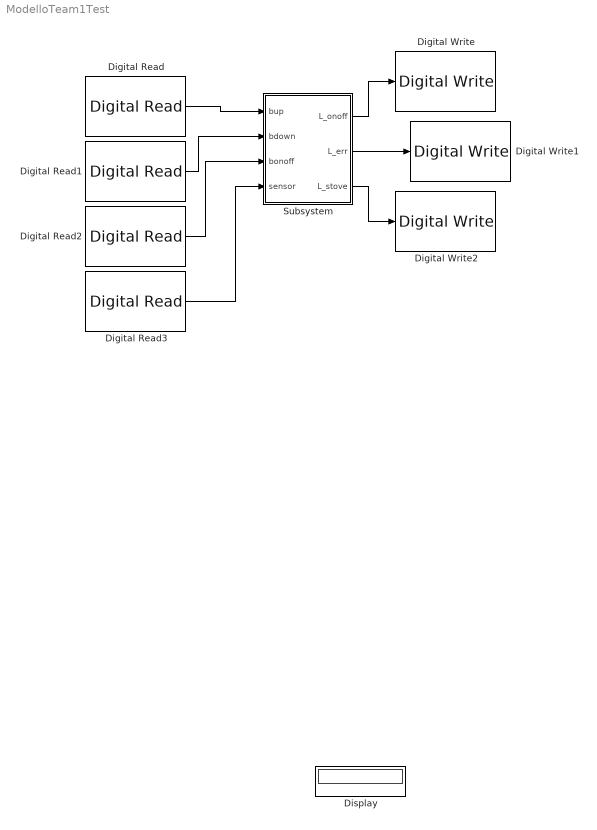
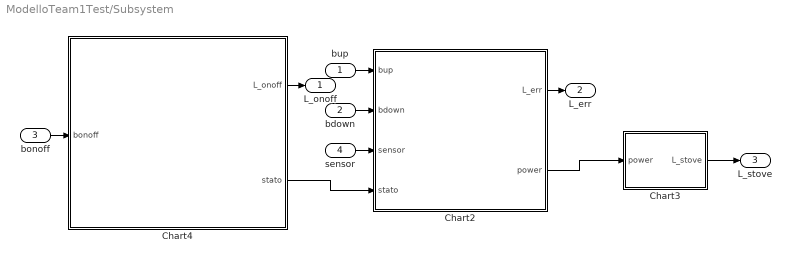
== stateflow chart ModelloTeam1Test/Subsystem/Chart3 ==
  state Stove_management
    state Blinking_stove
      state Led_on
        en: L_stove=ON;
      state Led_off
        en: L_stove = OFF;
      (default) -> Led_on
      Led_off -> Led_on : after(power,sec)
      Led_on -> Led_off : after(power,sec)
    state Starting_power
      en: L_stove=OFF;
    (default) -> Starting_power
    Blinking_stove -> Starting_power : [power==MAX_TIMING]
    Starting_power -> Blinking_stove : [power<MAX_TIMING]
  data: ON local =true; OFF local =false; L_stove output; power input; MAX_TIMING local =4

== stateflow chart ModelloTeam1Test/Subsystem/Chart2 ==
  state Power_and_error_management
    state Power_management [parallel]
      state PowerUD_manager_on
        state PowerUp
          en: temp_power=temp_power/2
        state Check_buttons
          en: power=temp_power;
        state PowerDown
          en: temp_power=temp_power*2
        PowerUp -> Check_buttons [order 4] : [power==MAX_TIMING & sensor~=ACTIVE]{temp_power=MAX_TIMING}
        PowerUp -> Check_buttons [order 2] : after(TIMER,sec)
        Check_buttons -> PowerUp [order 1] : [power~=MIN_TIMING  & bup_second==PRESSED]
        PowerUp -> PowerUp [order 3] : [temp_power~=MIN_TIMING  & bup_second==PRESSED]
        PowerUp -> PowerDown [order 1] : [bdown_second==PRESSED]
        PowerDown -> PowerUp [order 1] : [ bup_second==PRESSED]
        (default) -> Check_buttons
        Check_buttons -> PowerDown [order 2] : [power~=MAX_TIMING & bdown_second==PRESSED]
        PowerDown -> Check_buttons [order 4] : [power==MAX_TIMING & sensor~=ACTIVE]{temp_power=MAX_TIMING}
        PowerDown -> Check_buttons [order 2] : after(TIMER,sec)
        PowerDown -> PowerDown [order 3] : [temp_power~=MAX_TIMING & bdown_second==PRESSED]
      state PowerUD_manager_off
        en: temp_power=MAX_TIMING
        power=MAX_TIMING;
      (default) -> PowerUD_manager_off
      PowerUD_manager_off -> PowerUD_manager_on : [stato==ON]
      PowerUD_manager_on -> PowerUD_manager_off : [stato==OFF]
    state Button_up_down_management [parallel]
      state Button_up_down_manager_on
        state Longpressed_DOWN_button
          en: bdown_second = RELEASED;
        state Longpressed_UP_botton
          en: bup_second = RELEASED;
        state Pressed_DOWN_button
          en: bdown_second = RELEASED;
          on after(BUTTONDURATION,sec):
          bdown_second=PRESSED;
        state Pressed_UP_botton
          en: bup_second = RELEASED;
          on after(BUTTONDURATION,sec):
          bup_second=PRESSED;
        state Wait_Up_Down_button
          en: bup_second=RELEASED;
          bdown_second=RELEASED;
        Longpressed_UP_botton -> Wait_Up_Down_button : [bup==RELEASED]
        Pressed_UP_botton -> Longpressed_UP_botton [order 2] : [bup_second==PRESSED & bup == PRESSED]
        Pressed_DOWN_button -> Longpressed_DOWN_button [order 1] : [bdown_second==PRESSED & bdown == PRESSED]
        Longpressed_DOWN_button -> Wait_Up_Down_button : [bdown==RELEASED]
        Pressed_UP_botton -> Wait_Up_Down_button [order 1] : [bup==RELEASED | sensor ~=ACTIVE]
        Pressed_DOWN_button -> Wait_Up_Down_button [order 2] : [bdown==RELEASED | sensor~=ACTIVE]
        Wait_Up_Down_button -> Pressed_UP_botton [order 2] : [bup==PRESSED & sensor==ACTIVE]
        (default) -> Wait_Up_Down_button
        Wait_Up_Down_button -> Pressed_DOWN_button [order 1] : [bdown==PRESSED & sensor==ACTIVE]
      state Button_up_down_manager_off
      Button_up_down_manager_off -> Button_up_down_manager_on : [stato==ON]
      Button_up_down_manager_on -> Button_up_down_manager_off : [stato==OFF]
      (default) -> Button_up_down_manager_off
    state Error_management [parallel]
      state Error_manager_on
        state Wait_blinking
          en: power=MAX_TIMING;
          temp_power=MAX_TIMING;
        state Check_error
        state Start_error
          en: L_err=ON;
          ex: L_err =OFF;
        (default) -> Wait_blinking
        Check_error -> Wait_blinking [order 2] : [power==MAX_TIMING]
        Wait_blinking -> Check_error : [power<MAX_TIMING]
        Start_error -> Check_error [order 1] : [sensor==ACTIVE]
        Check_error -> Start_error [order 1] : [sensor~=ACTIVE]
        Start_error -> Wait_blinking [order 2] : after(ERR_TIMER,sec)
      state Error_manager_off
        en: L_err=OFF;
      Error_manager_off -> Error_manager_on : [stato==ON]
      (default) -> Error_manager_off
      Error_manager_on -> Error_manager_off : [stato==OFF]
  (default) -> Power_and_error_management
  data: bup input; bdown input; sensor input; L_err output; RELEASED local =true; PRESSED local =false; BUTTONDURATION local =1; bup_second local; bdown_second local; ACTIVE local =0; ERR_TIMER local =10; ON local =true; OFF local =false; TIMER local =5; temp_power local; power output; stato input boolean; MAX_TIMING local =4; MIN_TIMING local =0.25

== stateflow chart ModelloTeam1Test/Subsystem/Chart4 ==
  state PowerOFF_management
    state PowerOFF_manager_on
      state Pressed_OFF_button
        en: bonoff_second = RELEASED;
        on after(BUTTONDURATION,sec):
        bonoff_second=PRESSED;
      state Wait_OFF_button
        en: bonoff_second=RELEASED;
      Wait_OFF_button -> Pressed_OFF_button : [bonoff == PRESSED]
      Pressed_OFF_button -> Wait_OFF_button : [bonoff==RELEASED]
      (default) -> Wait_OFF_button
    state W_post_power_off
      en: L_onoff=OFF;
      stato=OFF;
    state PowerOFF_manager_off
      en: stato=OFF;
      L_onoff=OFF;
    state W_post_power_on
      en: stato=ON;
      L_onoff=ON;
    PowerOFF_manager_on -> W_post_power_off : [bonoff_second==PRESSED]
    W_post_power_off -> PowerOFF_manager_off : [bonoff==RELEASED]
    W_post_power_on -> PowerOFF_manager_on : [bonoff==RELEASED]
    (default) -> PowerOFF_manager_off
    PowerOFF_manager_off -> W_post_power_on : [bonoff==PRESSED]
  data: L_onoff output; bonoff input; RELEASED local =true; PRESSED local =false; bonoff_second local; ON local =true; OFF local =false; BUTTONDURATION local =1; stato output

/*
 * ModelloTeam1Test.c
 *
 * Academic License - for use in teaching, academic research, and meeting
 * course requirements at degree granting institutions only.  Not for
 * government, commercial, or other organizational use.
 *
 * Code generation for model "ModelloTeam1Test".
 *
 * Model version              : 1.87
 * Simulink Coder version : 9.8 (R2022b) 13-May-2022
 * C source code generated on : Thu Jun 15 16:43:28 2023
 *
 * Target selection: ert.tlc
 * Note: GRT includes extra infrastructure and instrumentation for prototyping
 * Embedded hardware selection: ARM Compatible->ARM Cortex
 * Code generation objectives: Unspecified
 * Validation result: Not run
 */

#include "ModelloTeam1Test.h"
#include "rtwtypes.h"
#include "ModelloTeam1Test_types.h"
#include <math.h>
#include <string.h>

/* Named constants for Chart: '<S1>/Chart2' */
#define M_IN_Button_up_down_manager_off ((uint8_T)1U)
#define Mo_IN_Button_up_down_manager_on ((uint8_T)2U)
#define Mode_IN_Longpressed_DOWN_button ((uint8_T)1U)
#define Modell_IN_Longpressed_UP_botton ((uint8_T)2U)
#define ModelloT_IN_PowerUD_manager_off ((uint8_T)1U)
#define ModelloT_IN_Pressed_DOWN_button ((uint8_T)3U)
#define ModelloT_IN_Wait_Up_Down_button ((uint8_T)5U)
#define ModelloTe_IN_PowerUD_manager_on ((uint8_T)2U)
#define ModelloTea_IN_Error_manager_off ((uint8_T)1U)
#define ModelloTea_IN_Pressed_UP_botton ((uint8_T)4U)
#define ModelloTeam1Te_IN_Check_buttons ((uint8_T)1U)
#define ModelloTeam1Te_IN_Wait_blinking ((uint8_T)3U)
#define ModelloTeam1Test_IN_Check_error ((uint8_T)1U)
#define ModelloTeam1Test_IN_PowerDown  ((uint8_T)2U)
#define ModelloTeam1Test_IN_PowerUp    ((uint8_T)3U)
#define ModelloTeam1Test_IN_Start_error ((uint8_T)2U)
#define ModelloTeam1_IN_NO_ACTIVE_CHILD ((uint8_T)0U)
#define ModelloTeam_IN_Error_manager_on ((uint8_T)2U)

/* Named constants for Chart: '<S1>/Chart3' */
#define ModelloTeam1T_IN_Blinking_stove ((uint8_T)1U)
#define ModelloTeam1T_IN_Starting_power ((uint8_T)2U)
#define ModelloTeam1Test_IN_Led_off    ((uint8_T)1U)
#define ModelloTeam1Test_IN_Led_on     ((uint8_T)2U)

/* Named constants for Chart: '<S1>/Chart4' */
#define ModelloT_IN_PowerOFF_manager_on ((uint8_T)2U)
#define ModelloTe_IN_Pressed_OFF_button ((uint8_T)1U)
#define ModelloTeam1_IN_W_post_power_on ((uint8_T)4U)
#define ModelloTeam1_IN_Wait_OFF_button ((uint8_T)2U)
#define ModelloTeam_IN_W_post_power_off ((uint8_T)3U)
#define Modello_IN_PowerOFF_manager_off ((uint8_T)1U)

/* Block signals (default storage) */
B_ModelloTeam1Test_T ModelloTeam1Test_B;

/* Block states (default storage) */
DW_ModelloTeam1Test_T ModelloTeam1Test_DW;

/* Real-time model */
static RT_MODEL_ModelloTeam1Test_T ModelloTeam1Test_M_;
RT_MODEL_ModelloTeam1Test_T *const ModelloTeam1Test_M = &ModelloTeam1Test_M_;

/* Model step function */
void ModelloTeam1Test_step(void)
{
  boolean_T guard1 = false;
  boolean_T guard2 = false;
  boolean_T rtb_DigitalRead1_0;
  boolean_T rtb_DigitalRead2_0;
  boolean_T rtb_DigitalRead3_0;

  /* MATLABSystem: '<Root>/Digital Read2' */
  if (ModelloTeam1Test_DW.obj_g.SampleTime !=
      ModelloTeam1Test_P.DigitalRead2_SampleTime) {
    ModelloTeam1Test_DW.obj_g.SampleTime =
      ModelloTeam1Test_P.DigitalRead2_SampleTime;
  }

  rtb_DigitalRead2_0 = MW_digitalIO_read
    (ModelloTeam1Test_DW.obj_g.MW_DIGITALIO_HANDLE);

  /* Chart: '<S1>/Chart4' incorporates:
   *  MATLABSystem: '<Root>/Digital Read2'
   */
  if (ModelloTeam1Test_DW.temporalCounter_i1 < MAX_uint32_T) {
    ModelloTeam1Test_DW.temporalCounter_i1++;
  }

  if (ModelloTeam1Test_DW.is_active_c4_ModelloTeam1Test == 0U) {
    ModelloTeam1Test_DW.is_active_c4_ModelloTeam1Test = 1U;
    ModelloTeam1Test_DW.is_PowerOFF_management = Modello_IN_PowerOFF_manager_off;
    ModelloTeam1Test_B.stato = ModelloTeam1Test_DW.OFF;
    ModelloTeam1Test_B.L_onoff = ModelloTeam1Test_DW.OFF;
  } else {
    switch (ModelloTeam1Test_DW.is_PowerOFF_management) {
     case Modello_IN_PowerOFF_manager_off:
      if (rtb_DigitalRead2_0 == ModelloTeam1Test_DW.PRESSED) {
        ModelloTeam1Test_DW.is_PowerOFF_management =
          ModelloTeam1_IN_W_post_power_on;
        ModelloTeam1Test_B.stato = ModelloTeam1Test_DW.ON;
        ModelloTeam1Test_B.L_onoff = ModelloTeam1Test_DW.ON;
      }
      break;

     case ModelloT_IN_PowerOFF_manager_on:
      if (ModelloTeam1Test_DW.bonoff_second == ModelloTeam1Test_DW.PRESSED) {
        ModelloTeam1Test_DW.is_PowerOFF_manager_on =
          ModelloTeam1_IN_NO_ACTIVE_CHILD;
        ModelloTeam1Test_DW.is_PowerOFF_management =
          ModelloTeam_IN_W_post_power_off;
        ModelloTeam1Test_B.L_onoff = ModelloTeam1Test_DW.OFF;
        ModelloTeam1Test_B.stato = ModelloTeam1Test_DW.OFF;
      } else if (ModelloTeam1Test_DW.is_PowerOFF_manager_on ==
                 ModelloTe_IN_Pressed_OFF_button) {
        if (rtb_DigitalRead2_0 == ModelloTeam1Test_DW.RELEASED) {
          ModelloTeam1Test_DW.is_PowerOFF_manager_on =
            ModelloTeam1_IN_Wait_OFF_button;
          ModelloTeam1Test_DW.bonoff_second = ModelloTeam1Test_DW.RELEASED;
        } else if (ModelloTeam1Test_DW.temporalCounter_i1 >= (uint32_T)ceil
                   (ModelloTeam1Test_DW.BUTTONDURATION * 4.0)) {
          ModelloTeam1Test_DW.bonoff_second = ModelloTeam1Test_DW.PRESSED;
        }

        /* case IN_Wait_OFF_button: */
      } else if (rtb_DigitalRead2_0 == ModelloTeam1Test_DW.PRESSED) {
        ModelloTeam1Test_DW.is_PowerOFF_manager_on =
          ModelloTe_IN_Pressed_OFF_button;
        ModelloTeam1Test_DW.temporalCounter_i1 = 0U;
        ModelloTeam1Test_DW.bonoff_second = ModelloTeam1Test_DW.RELEASED;
      }
      break;

     case ModelloTeam_IN_W_post_power_off:
      if (rtb_DigitalRead2_0 == ModelloTeam1Test_DW.RELEASED) {
        ModelloTeam1Test_DW.is_PowerOFF_management =
          Modello_IN_PowerOFF_manager_off;
        ModelloTeam1Test_B.stato = ModelloTeam1Test_DW.OFF;
        ModelloTeam1Test_B.L_onoff = ModelloTeam1Test_DW.OFF;
      }
      break;

     default:
      /* case IN_W_post_power_on: */
      if (rtb_DigitalRead2_0 == ModelloTeam1Test_DW.RELEASED) {
        ModelloTeam1Test_DW.is_PowerOFF_management =
          ModelloT_IN_PowerOFF_manager_on;
        ModelloTeam1Test_DW.is_PowerOFF_manager_on =
          ModelloTeam1_IN_Wait_OFF_button;
        ModelloTeam1Test_DW.bonoff_second = ModelloTeam1Test_DW.RELEASED;
      }
      break;
    }
  }

  /* End of Chart: '<S1>/Chart4' */

  /* MATLABSystem: '<Root>/Digital Write' */
  MW_digitalIO_write(ModelloTeam1Test_DW.obj_gt.MW_DIGITALIO_HANDLE,
                     ModelloTeam1Test_B.L_onoff);

  /* MATLABSystem: '<Root>/Digital Read' */
  if (ModelloTeam1Test_DW.obj_a.SampleTime !=
      ModelloTeam1Test_P.DigitalRead_SampleTime) {
    ModelloTeam1Test_DW.obj_a.SampleTime =
      ModelloTeam1Test_P.DigitalRead_SampleTime;
  }

  rtb_DigitalRead2_0 = MW_digitalIO_read
    (ModelloTeam1Test_DW.obj_a.MW_DIGITALIO_HANDLE);

  /* MATLABSystem: '<Root>/Digital Read1' */
  if (ModelloTeam1Test_DW.obj_d.SampleTime !=
      ModelloTeam1Test_P.DigitalRead1_SampleTime) {
    ModelloTeam1Test_DW.obj_d.SampleTime =
      ModelloTeam1Test_P.DigitalRead1_SampleTime;
  }

  rtb_DigitalRead1_0 = MW_digitalIO_read
    (ModelloTeam1Test_DW.obj_d.MW_DIGITALIO_HANDLE);

  /* MATLABSystem: '<Root>/Digital Read3' */
  if (ModelloTeam1Test_DW.obj.SampleTime !=
      ModelloTeam1Test_P.DigitalRead3_SampleTime) {
    ModelloTeam1Test_DW.obj.SampleTime =
      ModelloTeam1Test_P.DigitalRead3_SampleTime;
  }

  rtb_DigitalRead3_0 = MW_digitalIO_read
    (ModelloTeam1Test_DW.obj.MW_DIGITALIO_HANDLE);

  /* Chart: '<S1>/Chart2' incorporates:
   *  MATLABSystem: '<Root>/Digital Read'
   *  MATLABSystem: '<Root>/Digital Read1'
   *  MATLABSystem: '<Root>/Digital Read3'
   */
  if (ModelloTeam1Test_DW.temporalCounter_i1_j < MAX_uint32_T) {
    ModelloTeam1Test_DW.temporalCounter_i1_j++;
  }

  if (ModelloTeam1Test_DW.temporalCounter_i2 < MAX_uint32_T) {
    ModelloTeam1Test_DW.temporalCounter_i2++;
  }

  if (ModelloTeam1Test_DW.temporalCounter_i3 < MAX_uint32_T) {
    ModelloTeam1Test_DW.temporalCounter_i3++;
  }

  if (ModelloTeam1Test_DW.is_active_c2_ModelloTeam1Test == 0U) {
    ModelloTeam1Test_DW.is_active_c2_ModelloTeam1Test = 1U;
    ModelloTeam1Test_DW.is_Power_management = ModelloT_IN_PowerUD_manager_off;
    ModelloTeam1Test_DW.temp_power = ModelloTeam1Test_DW.MAX_TIMING_d;
    ModelloTeam1Test_B.power = ModelloTeam1Test_DW.MAX_TIMING_d;
    ModelloTeam1Test_DW.is_Button_up_down_management =
      M_IN_Button_up_down_manager_off;
    ModelloTeam1Test_DW.is_Error_management = ModelloTea_IN_Error_manager_off;
    ModelloTeam1Test_B.L_err = ModelloTeam1Test_DW.OFF_p;
  } else {
    if (ModelloTeam1Test_DW.is_Power_management ==
        ModelloT_IN_PowerUD_manager_off) {
      if (ModelloTeam1Test_B.stato == ModelloTeam1Test_DW.ON_d) {
        ModelloTeam1Test_DW.is_Power_management =
          ModelloTe_IN_PowerUD_manager_on;
        ModelloTeam1Test_DW.is_PowerUD_manager_on =
          ModelloTeam1Te_IN_Check_buttons;
        ModelloTeam1Test_B.power = ModelloTeam1Test_DW.temp_power;
      }

      /* case IN_PowerUD_manager_on: */
    } else if (ModelloTeam1Test_B.stato == ModelloTeam1Test_DW.OFF_p) {
      ModelloTeam1Test_DW.is_PowerUD_manager_on =
        ModelloTeam1_IN_NO_ACTIVE_CHILD;
      ModelloTeam1Test_DW.is_Power_management = ModelloT_IN_PowerUD_manager_off;
      ModelloTeam1Test_DW.temp_power = ModelloTeam1Test_DW.MAX_TIMING_d;
      ModelloTeam1Test_B.power = ModelloTeam1Test_DW.MAX_TIMING_d;
    } else {
      guard1 = false;
      guard2 = false;
      switch (ModelloTeam1Test_DW.is_PowerUD_manager_on) {
       case ModelloTeam1Te_IN_Check_buttons:
        if ((ModelloTeam1Test_B.power != ModelloTeam1Test_DW.MIN_TIMING) &&
            (ModelloTeam1Test_DW.bup_second == ModelloTeam1Test_DW.PRESSED_c)) {
          ModelloTeam1Test_DW.is_PowerUD_manager_on =
            ModelloTeam1Test_IN_PowerUp;
          ModelloTeam1Test_DW.temporalCounter_i2 = 0U;
          ModelloTeam1Test_DW.temp_power /= 2.0;
        } else if ((ModelloTeam1Test_B.power != ModelloTeam1Test_DW.MAX_TIMING_d)
                   && (ModelloTeam1Test_DW.bdown_second ==
                       ModelloTeam1Test_DW.PRESSED_c)) {
          ModelloTeam1Test_DW.is_PowerUD_manager_on =
            ModelloTeam1Test_IN_PowerDown;
          ModelloTeam1Test_DW.temporalCounter_i2 = 0U;
          ModelloTeam1Test_DW.temp_power *= 2.0;
        }
        break;

       case ModelloTeam1Test_IN_PowerDown:
        if (ModelloTeam1Test_DW.bup_second == ModelloTeam1Test_DW.PRESSED_c) {
          ModelloTeam1Test_DW.is_PowerUD_manager_on =
            ModelloTeam1Test_IN_PowerUp;
          ModelloTeam1Test_DW.temporalCounter_i2 = 0U;
          ModelloTeam1Test_DW.temp_power /= 2.0;
        } else if (ModelloTeam1Test_DW.temporalCounter_i2 >= (uint32_T)ceil
                   (ModelloTeam1Test_DW.TIMER * 4.0)) {
          guard2 = true;
        } else if ((ModelloTeam1Test_DW.temp_power !=
                    ModelloTeam1Test_DW.MAX_TIMING_d) &&
                   (ModelloTeam1Test_DW.bdown_second ==
                    ModelloTeam1Test_DW.PRESSED_c)) {
          ModelloTeam1Test_DW.is_PowerUD_manager_on =
            ModelloTeam1Test_IN_PowerDown;
          ModelloTeam1Test_DW.temporalCounter_i2 = 0U;
          ModelloTeam1Test_DW.temp_power *= 2.0;
        } else if ((ModelloTeam1Test_B.power == ModelloTeam1Test_DW.MAX_TIMING_d)
                   && (rtb_DigitalRead3_0 != ModelloTeam1Test_DW.ACTIVE)) {
          ModelloTeam1Test_DW.temp_power = ModelloTeam1Test_DW.MAX_TIMING_d;
          guard2 = true;
        }
        break;

       default:
        /* case IN_PowerUp: */
        if (ModelloTeam1Test_DW.bdown_second == ModelloTeam1Test_DW.PRESSED_c) {
          ModelloTeam1Test_DW.is_PowerUD_manager_on =
            ModelloTeam1Test_IN_PowerDown;
          ModelloTeam1Test_DW.temporalCounter_i2 = 0U;
          ModelloTeam1Test_DW.temp_power *= 2.0;
        } else if (ModelloTeam1Test_DW.temporalCounter_i2 >= (uint32_T)ceil
                   (ModelloTeam1Test_DW.TIMER * 4.0)) {
          guard1 = true;
        } else if ((ModelloTeam1Test_DW.temp_power !=
                    ModelloTeam1Test_DW.MIN_TIMING) &&
                   (ModelloTeam1Test_DW.bup_second ==
                    ModelloTeam1Test_DW.PRESSED_c)) {
          ModelloTeam1Test_DW.is_PowerUD_manager_on =
            ModelloTeam1Test_IN_PowerUp;
          ModelloTeam1Test_DW.temporalCounter_i2 = 0U;
          ModelloTeam1Test_DW.temp_power /= 2.0;
        } else if ((ModelloTeam1Test_B.power == ModelloTeam1Test_DW.MAX_TIMING_d)
                   && (rtb_DigitalRead3_0 != ModelloTeam1Test_DW.ACTIVE)) {
          ModelloTeam1Test_DW.temp_power = ModelloTeam1Test_DW.MAX_TIMING_d;
          guard1 = true;
        }
        break;
      }

      if (guard2) {
        ModelloTeam1Test_DW.is_PowerUD_manager_on =
          ModelloTeam1Te_IN_Check_buttons;
        ModelloTeam1Test_B.power = ModelloTeam1Test_DW.temp_power;
      }

      if (guard1) {
        ModelloTeam1Test_DW.is_PowerUD_manager_on =
          ModelloTeam1Te_IN_Check_buttons;
        ModelloTeam1Test_B.power = ModelloTeam1Test_DW.temp_power;
      }
    }

    if (ModelloTeam1Test_DW.is_Button_up_down_management ==
        M_IN_Button_up_down_manager_off) {
      if (ModelloTeam1Test_B.stato == ModelloTeam1Test_DW.ON_d) {
        ModelloTeam1Test_DW.is_Button_up_down_management =
          Mo_IN_Button_up_down_manager_on;
        ModelloTeam1Test_DW.is_Button_up_down_manager_on =
          ModelloT_IN_Wait_Up_Down_button;
        ModelloTeam1Test_DW.bup_second = ModelloTeam1Test_DW.RELEASED_i;
        ModelloTeam1Test_DW.bdown_second = ModelloTeam1Test_DW.RELEASED_i;
      }

      /* case IN_Button_up_down_manager_on: */
    } else if (ModelloTeam1Test_B.stato == ModelloTeam1Test_DW.OFF_p) {
      ModelloTeam1Test_DW.is_Button_up_down_manager_on =
        ModelloTeam1_IN_NO_ACTIVE_CHILD;
      ModelloTeam1Test_DW.is_Button_up_down_management =
        M_IN_Button_up_down_manager_off;
    } else {
      switch (ModelloTeam1Test_DW.is_Button_up_down_manager_on) {
       case Mode_IN_Longpressed_DOWN_button:
        if (rtb_DigitalRead1_0 == ModelloTeam1Test_DW.RELEASED_i) {
          ModelloTeam1Test_DW.is_Button_up_down_manager_on =
            ModelloT_IN_Wait_Up_Down_button;
          ModelloTeam1Test_DW.bup_second = ModelloTeam1Test_DW.RELEASED_i;
          ModelloTeam1Test_DW.bdown_second = ModelloTeam1Test_DW.RELEASED_i;
        }
        break;

       case Modell_IN_Longpressed_UP_botton:
        if (rtb_DigitalRead2_0 == ModelloTeam1Test_DW.RELEASED_i) {
          ModelloTeam1Test_DW.is_Button_up_down_manager_on =
            ModelloT_IN_Wait_Up_Down_button;
          ModelloTeam1Test_DW.bup_second = ModelloTeam1Test_DW.RELEASED_i;
          ModelloTeam1Test_DW.bdown_second = ModelloTeam1Test_DW.RELEASED_i;
        }
        break;

       case ModelloT_IN_Pressed_DOWN_button:
        if ((ModelloTeam1Test_DW.bdown_second == ModelloTeam1Test_DW.PRESSED_c) &&
            (rtb_DigitalRead1_0 == ModelloTeam1Test_DW.PRESSED_c)) {
          ModelloTeam1Test_DW.is_Button_up_down_manager_on =
            Mode_IN_Longpressed_DOWN_button;
          ModelloTeam1Test_DW.bdown_second = ModelloTeam1Test_DW.RELEASED_i;
        } else if ((rtb_DigitalRead1_0 == ModelloTeam1Test_DW.RELEASED_i) ||
                   (rtb_DigitalRead3_0 != ModelloTeam1Test_DW.ACTIVE)) {
          ModelloTeam1Test_DW.is_Button_up_down_manager_on =
            ModelloT_IN_Wait_Up_Down_button;
          ModelloTeam1Test_DW.bup_second = ModelloTeam1Test_DW.RELEASED_i;
          ModelloTeam1Test_DW.bdown_second = ModelloTeam1Test_DW.RELEASED_i;
        } else if (ModelloTeam1Test_DW.temporalCounter_i1_j >= (uint32_T)ceil
                   (ModelloTeam1Test_DW.BUTTONDURATION_l * 4.0)) {
          ModelloTeam1Test_DW.bdown_second = ModelloTeam1Test_DW.PRESSED_c;
        }
        break;

       case ModelloTea_IN_Pressed_UP_botton:
        if ((rtb_DigitalRead2_0 == ModelloTeam1Test_DW.RELEASED_i) ||
            (rtb_DigitalRead3_0 != ModelloTeam1Test_DW.ACTIVE)) {
          ModelloTeam1Test_DW.is_Button_up_down_manager_on =
            ModelloT_IN_Wait_Up_Down_button;
          ModelloTeam1Test_DW.bup_second = ModelloTeam1Test_DW.RELEASED_i;
          ModelloTeam1Test_DW.bdown_second = ModelloTeam1Test_DW.RELEASED_i;
        } else if ((ModelloTeam1Test_DW.bup_second ==
                    ModelloTeam1Test_DW.PRESSED_c) && (rtb_DigitalRead2_0 ==
                    ModelloTeam1Test_DW.PRESSED_c)) {
          ModelloTeam1Test_DW.is_Button_up_down_manager_on =
            Modell_IN_Longpressed_UP_botton;
          ModelloTeam1Test_DW.bup_second = ModelloTeam1Test_DW.RELEASED_i;
        } else if (ModelloTeam1Test_DW.temporalCounter_i1_j >= (uint32_T)ceil
                   (ModelloTeam1Test_DW.BUTTONDURATION_l * 4.0)) {
          ModelloTeam1Test_DW.bup_second = ModelloTeam1Test_DW.PRESSED_c;
        }
        break;

       default:
        /* case IN_Wait_Up_Down_button: */
        if ((rtb_DigitalRead1_0 == ModelloTeam1Test_DW.PRESSED_c) &&
            (rtb_DigitalRead3_0 == ModelloTeam1Test_DW.ACTIVE)) {
          ModelloTeam1Test_DW.is_Button_up_down_manager_on =
            ModelloT_IN_Pressed_DOWN_button;
          ModelloTeam1Test_DW.temporalCounter_i1_j = 0U;
          ModelloTeam1Test_DW.bdown_second = ModelloTeam1Test_DW.RELEASED_i;
        } else if ((rtb_DigitalRead2_0 == ModelloTeam1Test_DW.PRESSED_c) &&
                   (rtb_DigitalRead3_0 == ModelloTeam1Test_DW.ACTIVE)) {
          ModelloTeam1Test_DW.is_Button_up_down_manager_on =
            ModelloTea_IN_Pressed_UP_botton;
          ModelloTeam1Test_DW.temporalCounter_i1_j = 0U;
          ModelloTeam1Test_DW.bup_second = ModelloTeam1Test_DW.RELEASED_i;
        }
        break;
      }
    }

    if (ModelloTeam1Test_DW.is_Error_management ==
        ModelloTea_IN_Error_manager_off) {
      if (ModelloTeam1Test_B.stato == ModelloTeam1Test_DW.ON_d) {
        ModelloTeam1Test_DW.is_Error_management =
          ModelloTeam_IN_Error_manager_on;
        ModelloTeam1Test_DW.is_Error_manager_on =
          ModelloTeam1Te_IN_Wait_blinking;
        ModelloTeam1Test_B.power = ModelloTeam1Test_DW.MAX_TIMING_d;
        ModelloTeam1Test_DW.temp_power = ModelloTeam1Test_DW.MAX_TIMING_d;
      }

      /* case IN_Error_manager_on: */
    } else if (ModelloTeam1Test_B.stato == ModelloTeam1Test_DW.OFF_p) {
      ModelloTeam1Test_DW.is_Error_manager_on = ModelloTeam1_IN_NO_ACTIVE_CHILD;
      ModelloTeam1Test_DW.is_Error_management = ModelloTea_IN_Error_manager_off;
      ModelloTeam1Test_B.L_err = ModelloTeam1Test_DW.OFF_p;
    } else {
      switch (ModelloTeam1Test_DW.is_Error_manager_on) {
       case ModelloTeam1Test_IN_Check_error:
        if (rtb_DigitalRead3_0 != ModelloTeam1Test_DW.ACTIVE) {
          ModelloTeam1Test_DW.is_Error_manager_on =
            ModelloTeam1Test_IN_Start_error;
          ModelloTeam1Test_DW.temporalCounter_i3 = 0U;
          ModelloTeam1Test_B.L_err = ModelloTeam1Test_DW.ON_d;
        } else if (ModelloTeam1Test_B.power == ModelloTeam1Test_DW.MAX_TIMING_d)
        {
          ModelloTeam1Test_DW.is_Error_manager_on =
            ModelloTeam1Te_IN_Wait_blinking;
          ModelloTeam1Test_B.power = ModelloTeam1Test_DW.MAX_TIMING_d;
          ModelloTeam1Test_DW.temp_power = ModelloTeam1Test_DW.MAX_TIMING_d;
        }
        break;

       case ModelloTeam1Test_IN_Start_error:
        if (rtb_DigitalRead3_0 == ModelloTeam1Test_DW.ACTIVE) {
          ModelloTeam1Test_B.L_err = ModelloTeam1Test_DW.OFF_p;
          ModelloTeam1Test_DW.is_Error_manager_on =
            ModelloTeam1Test_IN_Check_error;
        } else if (ModelloTeam1Test_DW.temporalCounter_i3 >= (uint32_T)ceil
                   (ModelloTeam1Test_DW.ERR_TIMER * 4.0)) {
          ModelloTeam1Test_B.L_err = ModelloTeam1Test_DW.OFF_p;
          ModelloTeam1Test_DW.is_Error_manager_on =
            ModelloTeam1Te_IN_Wait_blinking;
          ModelloTeam1Test_B.power = ModelloTeam1Test_DW.MAX_TIMING_d;
          ModelloTeam1Test_DW.temp_power = ModelloTeam1Test_DW.MAX_TIMING_d;
        }
        break;

       default:
        /* case IN_Wait_blinking: */
        if (ModelloTeam1Test_B.power < ModelloTeam1Test_DW.MAX_TIMING_d) {
          ModelloTeam1Test_DW.is_Error_manager_on =
            ModelloTeam1Test_IN_Check_error;
        }
        break;
      }
    }
  }

  /* End of Chart: '<S1>/Chart2' */

  /* MATLABSystem: '<Root>/Digital Write1' */
  MW_digitalIO_write(ModelloTeam1Test_DW.obj_b.MW_DIGITALIO_HANDLE,
                     ModelloTeam1Test_B.L_err);

  /* Chart: '<S1>/Chart3' */
  if (ModelloTeam1Test_DW.temporalCounter_i1_i < MAX_uint32_T) {
    ModelloTeam1Test_DW.temporalCounter_i1_i++;
  }

  if (ModelloTeam1Test_DW.is_active_c1_ModelloTeam1Test == 0U) {
    ModelloTeam1Test_DW.is_active_c1_ModelloTeam1Test = 1U;
    ModelloTeam1Test_DW.is_Stove_management = ModelloTeam1T_IN_Starting_power;
    ModelloTeam1Test_B.L_stove = ModelloTeam1Test_DW.OFF_d;
  } else if (ModelloTeam1Test_DW.is_Stove_management ==
             ModelloTeam1T_IN_Blinking_stove) {
    if (ModelloTeam1Test_B.power == ModelloTeam1Test_DW.MAX_TIMING) {
      ModelloTeam1Test_DW.is_Blinking_stove = ModelloTeam1_IN_NO_ACTIVE_CHILD;
      ModelloTeam1Test_DW.is_Stove_management = ModelloTeam1T_IN_Starting_power;
      ModelloTeam1Test_B.L_stove = ModelloTeam1Test_DW.OFF_d;
    } else if (ModelloTeam1Test_DW.is_Blinking_stove ==
               ModelloTeam1Test_IN_Led_off) {
      if (ModelloTeam1Test_DW.temporalCounter_i1_i >= (uint32_T)ceil
          (ModelloTeam1Test_B.power * 4.0)) {
        ModelloTeam1Test_DW.is_Blinking_stove = ModelloTeam1Test_IN_Led_on;
        ModelloTeam1Test_DW.temporalCounter_i1_i = 0U;
        ModelloTeam1Test_B.L_stove = ModelloTeam1Test_DW.ON_p;
      }

      /* case IN_Led_on: */
    } else if (ModelloTeam1Test_DW.temporalCounter_i1_i >= (uint32_T)ceil
               (ModelloTeam1Test_B.power * 4.0)) {
      ModelloTeam1Test_DW.is_Blinking_stove = ModelloTeam1Test_IN_Led_off;
      ModelloTeam1Test_DW.temporalCounter_i1_i = 0U;
      ModelloTeam1Test_B.L_stove = ModelloTeam1Test_DW.OFF_d;
    }

    /* case IN_Starting_power: */
  } else if (ModelloTeam1Test_B.power < ModelloTeam1Test_DW.MAX_TIMING) {
    ModelloTeam1Test_DW.is_Stove_management = ModelloTeam1T_IN_Blinking_stove;
    ModelloTeam1Test_DW.is_Blinking_stove = ModelloTeam1Test_IN_Led_on;
    ModelloTeam1Test_DW.temporalCounter_i1_i = 0U;
    ModelloTeam1Test_B.L_stove = ModelloTeam1Test_DW.ON_p;
  }

  /* End of Chart: '<S1>/Chart3' */

  /* MATLABSystem: '<Root>/Digital Write2' */
  MW_digitalIO_write(ModelloTeam1Test_DW.obj_e.MW_DIGITALIO_HANDLE,
                     ModelloTeam1Test_B.L_stove);
}
